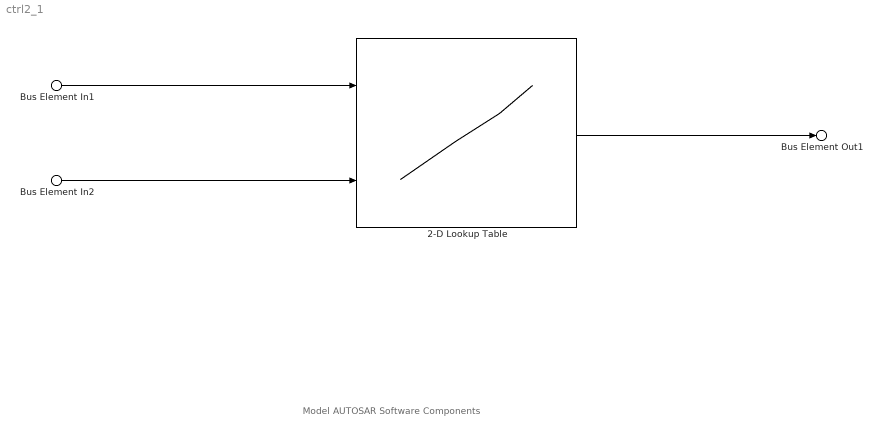
/*
 * Academic License - for use in teaching, academic research, and meeting
 * course requirements at degree granting institutions only.  Not for
 * government, commercial, or other organizational use.
 *
 * File: ctrl2_1.c
 *
 * Code generated for Simulink model 'ctrl2_1'.
 *
 * Model version                  : 2.18
 * Simulink Coder version         : 9.8 (R2022b) 13-May-2022
 * C/C++ source code generated on : Fri Nov 25 16:34:03 2022
 *
 * Target selection: autosar.tlc
 * Embedded hardware selection: Intel->x86-64 (Windows64)
 * Code generation objectives: Unspecified
 * Validation result: Not run
 */

#include "ctrl2_1.h"
#include "ctrl2_1_private.h"
#include "rtwtypes.h"
#include <math.h>

uint8 look2_ifbdtdIu8dd_linlcpw(float32 u0, float32 u1, const float64 bp0[],
  const float64 bp1[], const float64 table[], const uint32 maxIndex[], uint32
  stride)
{
  float64 fractions[2];
  float64 frac;
  float64 tmp;
  float64 yL_0d0;
  uint32 bpIndices[2];
  uint32 bpIdx;
  uint8 yL_1d;

  /* Column-major Lookup 2-D
     Search method: 'linear'
     Use previous index: 'off'
     Interpolation method: 'Linear point-slope'
     Extrapolation method: 'Clip'
     Use last breakpoint for index at or above upper limit: 'off'
     Remove protection against out-of-range input in generated code: 'off'
   */
  /* Prelookup - Index and Fraction
     Index Search method: 'linear'
     Extrapolation method: 'Clip'
     Use previous index: 'off'
     Use last breakpoint for index at or above upper limit: 'off'
     Remove protection against out-of-range input in generated code: 'off'
   */
  if (u0 < bp0[0U]) {
    bpIdx = 0U;
    frac = 0.0;
  } else if (u0 < (float32)bp0[maxIndex[0U]]) {
    /* Linear Search */
    for (bpIdx = maxIndex[0U] >> 1U; u0 < bp0[bpIdx]; bpIdx--) {
    }

    while (u0 >= bp0[bpIdx + 1U]) {
      bpIdx++;
    }

    frac = (u0 - bp0[bpIdx]) / (bp0[bpIdx + 1U] - bp0[bpIdx]);
  } else {
    bpIdx = maxIndex[0U] - 1U;
    frac = 1.0;
  }

  fractions[0U] = frac;
  bpIndices[0U] = bpIdx;

  /* Prelookup - Index and Fraction
     Index Search method: 'linear'
     Extrapolation method: 'Clip'
     Use previous index: 'off'
     Use last breakpoint for index at or above upper limit: 'off'
     Remove protection against out-of-range input in generated code: 'off'
   */
  if (u1 < bp1[0U]) {
    bpIdx = 0U;
    frac = 0.0;
  } else if (u1 < (float32)bp1[maxIndex[1U]]) {
    /* Linear Search */
    for (bpIdx = maxIndex[1U] >> 1U; u1 < bp1[bpIdx]; bpIdx--) {
    }

    while (u1 >= bp1[bpIdx + 1U]) {
      bpIdx++;
    }

    frac = (u1 - bp1[bpIdx]) / (bp1[bpIdx + 1U] - bp1[bpIdx]);
  } else {
    bpIdx = maxIndex[1U] - 1U;
    frac = 1.0;
  }

  /* Column-major Interpolation 2-D
     Interpolation method: 'Linear point-slope'
     Use last breakpoint for index at or above upper limit: 'off'
     Overflow mode: 'portable wrapping'
   */
  bpIdx = bpIdx * stride + bpIndices[0U];
  yL_0d0 = table[bpIdx];
  tmp = fmod(trunc(yL_0d0), 256.0);
  yL_0d0 = fmod(trunc((table[bpIdx + 1U] - yL_0d0) * fractions[0U]), 256.0);
  yL_1d = (uint8)((uint32)(uint8)(tmp < 0.0 ? (sint32)(uint8)-(sint8)(uint8)-tmp
    : (sint32)(uint8)tmp) + (uint8)(yL_0d0 < 0.0 ? (sint32)(uint8)-(sint8)(uint8)
    -yL_0d0 : (sint32)(uint8)yL_0d0));
  bpIdx += stride;
  yL_0d0 = table[bpIdx];
  tmp = fmod(trunc(yL_0d0), 256.0);
  yL_0d0 = fmod(trunc((table[bpIdx + 1U] - yL_0d0) * fractions[0U]), 256.0);
  tmp = fmod(trunc(((float64)(uint8)((uint32)(uint8)(tmp < 0.0 ? (sint32)(uint8)
    -(sint8)(uint8)-tmp : (sint32)(uint8)tmp) + (uint8)(yL_0d0 < 0.0 ? (sint32)
    (uint8)-(sint8)(uint8)-yL_0d0 : (sint32)(uint8)yL_0d0)) - (float64)yL_1d) *
                   frac), 256.0);
  return (uint8)((uint32)(uint8)(tmp < 0.0 ? (sint32)(uint8)-(sint8)(uint8)-tmp :
    (sint32)(uint8)tmp) + yL_1d);
}

/* Model step function */
void ctrl2_1_Step(void)
{
  /* Outport generated from: '<Root>/Bus Element Out1' incorporates:
   *  Inport generated from: '<Root>/Bus Element In1'
   *  Inport generated from: '<Root>/Bus Element In2'
   *  Lookup_n-D: '<Root>/2-D Lookup Table'
   */
  Rte_IWrite_ctrl2_1_Step_OutBus_Value(look2_ifbdtdIu8dd_linlcpw
    (Rte_IRead_ctrl2_1_Step_InBus1_Value(), Rte_IRead_ctrl2_1_Step_InBus2_Value(),
     Rte_CData_L_4x6_single_ar()->BP1, Rte_CData_L_4x6_single_ar()->BP2,
     Rte_CData_L_4x6_single_ar()->Table, ctrl2_1_ConstP.uDLookupTable_maxIndex,
     3U));
}
